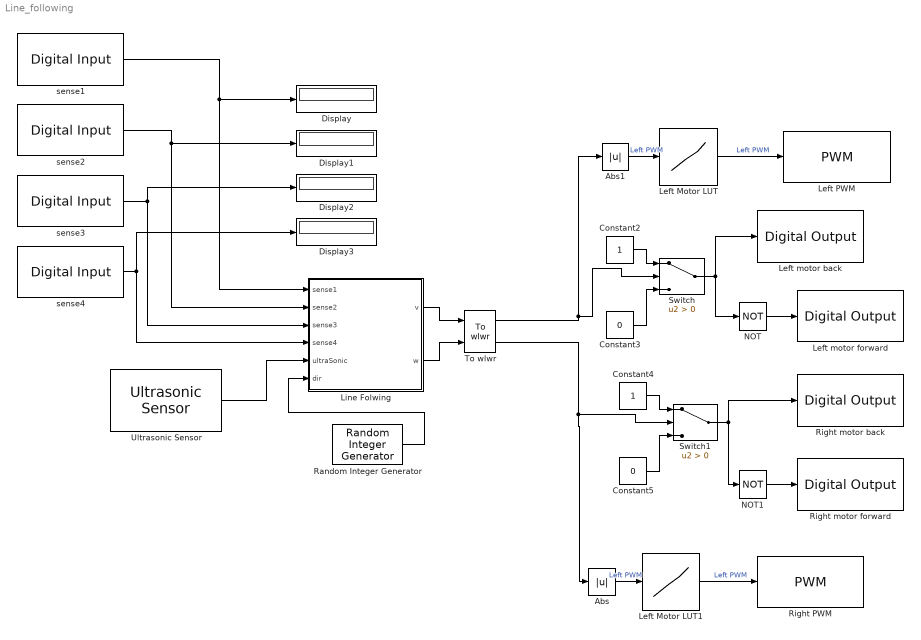
== stateflow chart Line_following/Line Folwing ==
  state Random
    entry:
    dir;
  state notEnd
    entry:
    v=-0.5;
  state End
    entry:
    v=0;
    w=0;
    i=1;
  state TurnAround
    entry:
    v=0;
    w=1;
  state checkEnd
    entry:
    v=0.5;
  state TurnLeft
    entry:
    v=0.5;
    w=1;
  state TurnRight
    entry:
    v=0.5;
    w=-1;
  state Drive
    entry:
    v=0.5;
    w=0;
    i;
    n;
    data1;
  state CorrectLeft
    entry:
    v=0.5;
    w=1
  state CorrectRight
    entry:
    v=0.5;
    w=-1
  state ObjectDetected
    entry:
    v=0.5;
  state CorrectRight1
    entry:
    w=-1;
  state CorrectLeft1
    entry:
    w=1;
  state TurnAround1
    entry:
    w=1;
  state EndOfLine
    entry:
    v=0;
  state update
    entry:
    data1=ultraSonic;
  state WeOUT
    entry:
    v=0;
    w=0;
  checkEnd -> TurnAround [order 3] : [after(0.5,sec) &&sense1 ==0 && sense2 == 0 && sense3 ==0 && sense4==0 && i==1]
  Random -> TurnLeft [order 2] : [dir==1]
  Random -> TurnRight [order 1] : [dir==0]
  notEnd -> Random : [after(0.5,sec)]
  checkEnd -> notEnd [order 1] : [after(0.5,sec) &&sense1 == 1 && sense2 == 1 && sense3 ==1 && sense4==1 ]
  End -> TurnAround : [after(3,sec)]
  checkEnd -> End [order 2] : [after(0.5,sec) &&sense1 ==0 && sense2 == 0 && sense3 ==0 && sense4==0 && i==0]
  TurnAround -> Drive : [after(2,sec) && sense2 == 0 && sense3 == 0]
  Drive -> checkEnd [order 2] : [sense1 == 0 && sense2 == 0 && sense3 == 0 && sense4==0]
  (default) -> Drive
  TurnRight -> Drive : [after(0.5,sec) && sense2 ==0 && sense3 ==0]
  Drive -> TurnLeft [order 6] : [after(0.5,sec) && sense2 == 0 && sense3 == 0 && sense1 == 0 ]
  TurnLeft -> Drive : [sense2==0 && sense3==0 && after(0.5,sec)]
  Drive -> TurnRight [order 3] : [after(0.5,sec) && sense2 == 0 && sense3 == 0 && sense4 == 0 && sense1==1]
  Drive -> CorrectLeft [order 4] : [sense2==0 && sense3 ==1 && sense1 == 1 &&sense4 ==1]
  Drive -> CorrectRight [order 1] : [sense2==1 && sense3 ==0 && sense1 == 1 &&sense4 ==1]
  CorrectLeft -> Drive : [sense2 ==0 && sense3 ==0]
  CorrectRight -> Drive : [sense2==0 && sense3 == 0]
  TurnAround1 -> Drive : [after(1,sec) && sense2 == 0 && sense3 == 0]
  Drive -> EndOfLine [order 7] : [sense1 == 1 && sense2 == 1 && sense3 == 1 && sense4==1]
  Drive -> ObjectDetected [order 5] : [ultraSonic ~= 0]
  ObjectDetected -> CorrectRight1 [order 2] : [sense2==1 && sense3 ==0]
  ObjectDetected -> CorrectLeft1 [order 3] : [sense2==0 && sense3 ==1]
  CorrectRight1 -> ObjectDetected : [sense2==0 && sense3 == 0]
  CorrectLeft1 -> ObjectDetected : [sense2 ==0 && sense3 ==0]
  ObjectDetected -> EndOfLine [order 1] : [sense1 == 0 && sense4 == 0]
  EndOfLine -> TurnAround1 [order 2] : [after(1,sec)]
  update -> EndOfLine
  EndOfLine -> update [order 1] : [ultraSonic<data1 && ultraSonic~=0 && i==0]
  EndOfLine -> WeOUT [order 3] : [i==1 && ultraSonic==data1]
  data: v output; w output; sense3 input; sense2 input; sense4 input; sense1 input; ultraSonic input; i local =0; dir input; n local =1; data1 local =100

/*
 * Line_following.c
 *
 * Academic License - for use in teaching, academic research, and meeting
 * course requirements at degree granting institutions only.  Not for
 * government, commercial, or other organizational use.
 *
 * Code generation for model "Line_following".
 *
 * Model version              : 5.20
 * Simulink Coder version : 9.9 (R2023a) 19-Nov-2022
 * C source code generated on : Thu Oct  5 15:04:30 2023
 *
 * Target selection: ert.tlc
 * Note: GRT includes extra infrastructure and instrumentation for prototyping
 * Embedded hardware selection: ARM Compatible->ARM Cortex
 * Code generation objectives: Unspecified
 * Validation result: Not run
 */

#include "Line_following.h"
#include "rtwtypes.h"
#include <string.h>
#include "Line_following_types.h"
#include <math.h>
#include "Line_following_private.h"

/* Named constants for Chart: '<Root>/Line Folwing' */
#define Line_followi_IN_NO_ACTIVE_CHILD ((uint8_T)0U)
#define Line_followin_IN_ObjectDetected ((uint8_T)8U)
#define Line_following_IN_CorrectLeft  ((uint8_T)1U)
#define Line_following_IN_CorrectLeft1 ((uint8_T)2U)
#define Line_following_IN_CorrectRight ((uint8_T)3U)
#define Line_following_IN_CorrectRight1 ((uint8_T)4U)
#define Line_following_IN_Drive        ((uint8_T)5U)
#define Line_following_IN_End          ((uint8_T)6U)
#define Line_following_IN_EndOfLine    ((uint8_T)7U)
#define Line_following_IN_Random       ((uint8_T)9U)
#define Line_following_IN_TurnAround   ((uint8_T)10U)
#define Line_following_IN_TurnAround1  ((uint8_T)11U)
#define Line_following_IN_TurnLeft     ((uint8_T)12U)
#define Line_following_IN_TurnRight    ((uint8_T)13U)
#define Line_following_IN_WeOUT        ((uint8_T)14U)
#define Line_following_IN_checkEnd     ((uint8_T)15U)
#define Line_following_IN_notEnd       ((uint8_T)16U)
#define Line_following_IN_update       ((uint8_T)17U)

/* Block signals (default storage) */
B_Line_following_T Line_following_B;

/* Block states (default storage) */
DW_Line_following_T Line_following_DW;

/* Real-time model */
static RT_MODEL_Line_following_T Line_following_M_;
RT_MODEL_Line_following_T *const Line_following_M = &Line_following_M_;

/* Forward declaration for local functions */
static void Line_following_Drive(void);
static void Line_following_checkEnd(void);
static real_T Line_following_rand(void);
static void rate_monotonic_scheduler(void);
uint32_T plook_u32d_binckan(real_T u, const real_T bp[], uint32_T maxIndex)
{
  uint32_T bpIndex;

  /* Prelookup - Index only
     Index Search method: 'binary'
     Interpolation method: 'Use nearest'
     Extrapolation method: 'Clip'
     Use previous index: 'off'
     Use last breakpoint for index at or above upper limit: 'on'
     Remove protection against out-of-range input in generated code: 'off'
   */
  if (u <= bp[0U]) {
    bpIndex = 0U;
  } else if (u < bp[maxIndex]) {
    bpIndex = binsearch_u32d(u, bp, maxIndex >> 1U, maxIndex);
    if ((bpIndex < maxIndex) && (bp[bpIndex + 1U] - u <= u - bp[bpIndex])) {
      bpIndex++;
    }
  } else {
    bpIndex = maxIndex;
  }

  return bpIndex;
}

uint32_T binsearch_u32d(real_T u, const real_T bp[], uint32_T startIndex,
  uint32_T maxIndex)
{
  uint32_T bpIdx;
  uint32_T bpIndex;
  uint32_T iRght;

  /* Binary Search */
  bpIdx = startIndex;
  bpIndex = 0U;
  iRght = maxIndex;
  while (iRght - bpIndex > 1U) {
    if (u < bp[bpIdx]) {
      iRght = bpIdx;
    } else {
      bpIndex = bpIdx;
    }

    bpIdx = (iRght + bpIndex) >> 1U;
  }

  return bpIndex;
}

/*
 * Set which subrates need to run this base step (base rate always runs).
 * This function must be called prior to calling the model step function
 * in order to remember which rates need to run this base step.  The
 * buffering of events allows for overlapping preemption.
 */
void Line_following_SetEventsForThisBaseStep(boolean_T *eventFlags)
{
  /* Task runs when its counter is zero, computed via rtmStepTask macro */
  eventFlags[1] = ((boolean_T)rtmStepTask(Line_following_M, 1));
  eventFlags[2] = ((boolean_T)rtmStepTask(Line_following_M, 2));
}

/*
 *         This function updates active task flag for each subrate
 *         and rate transition flags for tasks that exchange data.
 *         The function assumes rate-monotonic multitasking scheduler.
 *         The function must be called at model base rate so that
 *         the generated code self-manages all its subrates and rate
 *         transition flags.
 */
static void rate_monotonic_scheduler(void)
{
  /* To ensure a deterministic data transfer between two rates,
   * data is transferred at the priority of a fast task and the frequency
   * of the slow task.  The following flags indicate when the data transfer
   * happens.  That is, a rate interaction flag is set true when both rates
   * will run, and false otherwise.
   */

  /* tid 0 shares data with slower tid rates: 1, 2 */
  Line_following_M->Timing.RateInteraction.TID0_1 =
    (Line_following_M->Timing.TaskCounters.TID[1] == 0);
  Line_following_M->Timing.RateInteraction.TID0_2 =
    (Line_following_M->Timing.TaskCounters.TID[2] == 0);

  /* Compute which subrates run during the next base time step.  Subrates
   * are an integer multiple of the base rate counter.  Therefore, the subtask
   * counter is reset when it reaches its limit (zero means run).
   */
  (Line_following_M->Timing.TaskCounters.TID[1])++;
  if ((Line_following_M->Timing.TaskCounters.TID[1]) > 9) {/* Sample time: [0.1s, 0.0s] */
    Line_following_M->Timing.TaskCounters.TID[1] = 0;
  }

  (Line_following_M->Timing.TaskCounters.TID[2])++;
  if ((Line_following_M->Timing.TaskCounters.TID[2]) > 299) {/* Sample time: [3.0s, 0.0s] */
    Line_following_M->Timing.TaskCounters.TID[2] = 0;
  }
}

/* Function for Chart: '<Root>/Line Folwing' */
static void Line_following_Drive(void)
{
  boolean_T tmp;
  boolean_T tmp_0;
  boolean_T tmp_1;
  boolean_T tmp_2;
  Line_following_B.v = 0.12;
  Line_following_B.w = 0.0;
  tmp = !Line_following_B.TmpRTBAtLineFolwingInport1;
  if (Line_following_B.TmpRTBAtLineFolwingInport2 && tmp &&
      Line_following_B.TmpRTBAtLineFolwingInport4 &&
      Line_following_B.TmpRTBAtLineFolwingInport3) {
    Line_following_DW.is_c1_Line_following = Line_following_IN_CorrectRight;
    Line_following_B.w = -3.0;
  } else {
    tmp_0 = !Line_following_B.TmpRTBAtLineFolwingInport2;
    tmp_1 = !Line_following_B.TmpRTBAtLineFolwingInport3;
    tmp_2 = !Line_following_B.TmpRTBAtLineFolwingInport4;
    if (tmp_2 && tmp_0 && tmp && tmp_1) {
      Line_following_DW.is_c1_Line_following = Line_following_IN_checkEnd;
      Line_following_DW.temporalCounter_i1 = 0U;
    } else {
      tmp = ((Line_following_DW.temporalCounter_i1 >= 50U) && tmp_0 && tmp);
      if (tmp && tmp_1 && Line_following_B.TmpRTBAtLineFolwingInport4) {
        Line_following_DW.is_c1_Line_following = Line_following_IN_TurnRight;
        Line_following_DW.temporalCounter_i1 = 0U;
        Line_following_B.w = -3.0;
      } else if (tmp_0 && Line_following_B.TmpRTBAtLineFolwingInport1 &&
                 Line_following_B.TmpRTBAtLineFolwingInport4 &&
                 Line_following_B.TmpRTBAtLineFolwingInport3) {
        Line_following_DW.is_c1_Line_following = Line_following_IN_CorrectLeft;
        Line_following_B.w = 3.0;
      } else if (Line_following_B.UltrasonicSensor != 0.0) {
        Line_following_DW.is_c1_Line_following = Line_followin_IN_ObjectDetected;
      } else if (tmp && tmp_2) {
        Line_following_DW.is_c1_Line_following = Line_following_IN_TurnLeft;
        Line_following_DW.temporalCounter_i1 = 0U;
        Line_following_B.w = 3.0;
      } else if (Line_following_B.TmpRTBAtLineFolwingInport4 &&
                 Line_following_B.TmpRTBAtLineFolwingInport2 &&
                 Line_following_B.TmpRTBAtLineFolwingInport1 &&
                 Line_following_B.TmpRTBAtLineFolwingInport3) {
        Line_following_DW.is_c1_Line_following = Line_following_IN_EndOfLine;
        Line_following_DW.temporalCounter_i1 = 0U;
        Line_following_B.v = 0.0;
      }
    }
  }
}

/* Function for Chart: '<Root>/Line Folwing' */
static void Line_following_checkEnd(void)
{
  boolean_T tmp;
  Line_following_B.v = 0.12;
  if ((Line_following_DW.temporalCounter_i1 >= 50U) &&
      Line_following_B.TmpRTBAtLineFolwingInport4 &&
      Line_following_B.TmpRTBAtLineFolwingInport2 &&
      Line_following_B.TmpRTBAtLineFolwingInport1 &&
      Line_following_B.TmpRTBAtLineFolwingInport3) {
    Line_following_DW.is_c1_Line_following = Line_following_IN_notEnd;
    Line_following_DW.temporalCounter_i1 = 0U;
    Line_following_B.v = -0.12;
  } else {
    tmp = ((Line_following_DW.temporalCounter_i1 >= 50U) &&
           (!Line_following_B.TmpRTBAtLineFolwingInport4) &&
           (!Line_following_B.TmpRTBAtLineFolwingInport2) &&
           (!Line_following_B.TmpRTBAtLineFolwingInport1) &&
           (!Line_following_B.TmpRTBAtLineFolwingInport3));
    if (tmp && (Line_following_DW.i == 0.0)) {
      Line_following_DW.is_c1_Line_following = Line_following_IN_End;
      Line_following_DW.temporalCounter_i1 = 0U;
      Line_following_B.v = 0.0;
      Line_following_B.w = 0.0;
      Line_following_DW.i = 1.0;
    } else if (tmp && (Line_following_DW.i == 1.0)) {
      Line_following_DW.is_c1_Line_following = Line_following_IN_TurnAround;
      Line_following_DW.temporalCounter_i1 = 0U;
      Line_following_B.v = 0.0;
      Line_following_B.w = 3.0;
    }
  }
}

real_T rt_roundd_snf(real_T u)
{
  real_T y;
  if (fabs(u) < 4.503599627370496E+15) {
    if (u >= 0.5) {
      y = floor(u + 0.5);
    } else if (u > -0.5) {
      y = u * 0.0;
    } else {
      y = ceil(u - 0.5);
    }
  } else {
    y = u;
  }

  return y;
}

static real_T Line_following_rand(void)
{
  real_T r;
  int32_T b_kk;
  int32_T exitg1;
  int32_T k;
  uint32_T b_u[2];
  uint32_T mti;
  uint32_T y;
  boolean_T b_isvalid;
  boolean_T exitg2;
  if (Line_following_DW.method == 4U) {
    k = (int32_T)(Line_following_DW.state / 127773U);
    mti = (Line_following_DW.state - (uint32_T)k * 127773U) * 16807U;
    y = 2836U * (uint32_T)k;
    if (mti < y) {
      Line_following_DW.state = ~(y - mti) & 2147483647U;
    } else {
      Line_following_DW.state = mti - y;
    }

    r = (real_T)Line_following_DW.state * 4.6566128752457969E-10;
  } else if (Line_following_DW.method == 5U) {
    mti = 69069U * Line_following_DW.state_f[0] + 1234567U;
    y = Line_following_DW.state_f[1] << 13 ^ Line_following_DW.state_f[1];
    y ^= y >> 17;
    y ^= y << 5;
    Line_following_DW.state_f[0] = mti;
    Line_following_DW.state_f[1] = y;
    r = (real_T)(mti + y) * 2.328306436538696E-10;
  } else {
    /* ========================= COPYRIGHT NOTICE ============================ */
    /*  This is a uniform (0,1) pseudorandom number generator based on:        */
    /*                                                                         */
    /*  A C-program for MT19937, with initialization improved 2002/1/26.       */
    /*  Coded by Takuji Nishimura and Makoto Matsumoto.                        */
    /*                                                                         */
    /*  Copyright (C) 1997 - 2002, Makoto Matsumoto and Takuji Nishimura,      */
    /*  All rights reserved.                                                   */
    /*                                                                         */
    /*  Redistribution and use in source and binary forms, with or without     */
    /*  modification, are permitted provided that the following conditions     */
    /*  are met:                                                               */
    /*                                                                         */
    /*    1. Redistributions of source code must retain the above copyright    */
    /*       notice, this list of conditions and the following disclaimer.     */
    /*                                                                         */
    /*    2. Redistributions in binary form must reproduce the above copyright */
    /*       notice, this list of conditions and the following disclaimer      */
    /*       in the documentation and/or other materials provided with the     */
    /*       distribution.                                                     */
    /*                                                                         */
    /*    3. The names of its contributors may not be used to endorse or       */
    /*       promote products derived from this software without specific      */
    /*       prior written permission.                                         */
    /*                                                                         */
    /*  THIS SOFTWARE IS PROVIDED BY THE COPYRIGHT HOLDERS AND CONTRIBUTORS    */
    /*  "AS IS" AND ANY EXPRESS OR IMPLIED WARRANTIES, INCLUDING, BUT NOT      */
    /*  LIMITED TO, THE IMPLIED WARRANTIES OF MERCHANTABILITY AND FITNESS FOR  */
    /*  A PARTICULAR PURPOSE ARE DISCLAIMED.  IN NO EVENT SHALL THE COPYRIGHT  */
    /*  OWNER OR CONTRIBUTORS BE LIABLE FOR ANY DIRECT, INDIRECT, INCIDENTAL,  */
    /*  SPECIAL, EXEMPLARY, OR CONSEQUENTIAL DAMAGES (INCLUDING, BUT NOT       */
    /*  LIMITED TO, PROCUREMENT OF SUBSTITUTE GOODS OR SERVICES; LOSS OF USE,  */
    /*  DATA, OR PROFITS; OR BUSINESS INTERRUPTION) HOWEVER CAUSED AND ON ANY  */
    /*  THEORY OF LIABILITY, WHETHER IN CONTRACT, STRICT LIABILITY, OR TORT    */
    /*  (INCLUDING  NEGLIGENCE OR OTHERWISE) ARISING IN ANY WAY OUT OF THE USE */
    /*  OF THIS  SOFTWARE, EVEN IF ADVISED OF THE POSSIBILITY OF SUCH DAMAGE.  */
    /*                                                                         */
    /* =============================   END   ================================= */
    do {
      exitg1 = 0;
      for (k = 0; k < 2; k++) {
        mti = Line_following_DW.state_p[624] + 1U;
        if (Line_following_DW.state_p[624] + 1U >= 625U) {
          for (b_kk = 0; b_kk < 227; b_kk++) {
            y = (Line_following_DW.state_p[b_kk + 1] & 2147483647U) |
              (Line_following_DW.state_p[b_kk] & 2147483648U);
            if ((y & 1U) == 0U) {
              mti = y >> 1U;
            } else {
              mti = y >> 1U ^ 2567483615U;
            }

            Line_following_DW.state_p[b_kk] = Line_following_DW.state_p[b_kk +
              397] ^ mti;
          }

          for (b_kk = 0; b_kk < 396; b_kk++) {
            y = (Line_following_DW.state_p[b_kk + 227] & 2147483648U) |
              (Line_following_DW.state_p[b_kk + 228] & 2147483647U);
            if ((y & 1U) == 0U) {
              mti = y >> 1U;
            } else {
              mti = y >> 1U ^ 2567483615U;
            }

            Line_following_DW.state_p[b_kk + 227] =
              Line_following_DW.state_p[b_kk] ^ mti;
          }

          y = (Line_following_DW.state_p[623] & 2147483648U) |
            (Line_following_DW.state_p[0] & 2147483647U);
          if ((y & 1U) == 0U) {
            mti = y >> 1U;
          } else {
            mti = y >> 1U ^ 2567483615U;
          }

          Line_following_DW.state_p[623] = Line_following_DW.state_p[396] ^ mti;
          mti = 1U;
        }

        y = Line_following_DW.state_p[(int32_T)mti - 1];
        Line_following_DW.state_p[624] = mti;
        y ^= y >> 11U;
        y ^= y << 7U & 2636928640U;
        y ^= y << 15U & 4022730752U;
        b_u[k] = y >> 18U ^ y;
      }

      r = ((real_T)(b_u[0] >> 5U) * 6.7108864E+7 + (real_T)(b_u[1] >> 6U)) *
        1.1102230246251565E-16;
      if (r == 0.0) {
        if ((Line_following_DW.state_p[624] >= 1U) &&
            (Line_following_DW.state_p[624] < 625U)) {
          b_isvalid = true;
        } else {
          b_isvalid = false;
        }

        if (b_isvalid) {
          b_isvalid = false;
          k = 0;
          exitg2 = false;
          while ((!exitg2) && (k + 1 < 625)) {
            if (Line_following_DW.state_p[k] == 0U) {
              k++;
            } else {
              b_isvalid = true;
              exitg2 = true;
            }
          }
        }

        if (!b_isvalid) {
          mti = 5489U;
          Line_following_DW.state_p[0] = 5489U;
          for (k = 0; k < 623; k++) {
            mti = ((mti >> 30U ^ mti) * 1812433253U + (uint32_T)k) + 1U;
            Line_following_DW.state_p[k + 1] = mti;
          }

          Line_following_DW.state_p[624] = 624U;
        }
      } else {
        exitg1 = 1;
      }
    } while (exitg1 == 0);
  }

  return r;
}

/* Model step function for TID0 */
void Line_following_step0(void)        /* Sample time: [0.01s, 0.0s] */
{
  codertarget_arduinobase_inter_T *obj;
  real_T rtb_vtow_idx_0;
  real_T rtb_vtow_idx_1;
  real_T u0;
  uint32_T duration;
  uint8_T tmp;

  {                                    /* Sample time: [0.01s, 0.0s] */
    rate_monotonic_scheduler();
  }

  /* RateTransition generated from: '<Root>/Line Folwing' */
  if (Line_following_M->Timing.RateInteraction.TID0_1) {
    /* RateTransition generated from: '<Root>/Line Folwing' */
    Line_following_B.TmpRTBAtLineFolwingInport1 =
      Line_following_DW.TmpRTBAtLineFolwingInport1_Buff;

    /* RateTransition generated from: '<Root>/Line Folwing' */
    Line_following_B.TmpRTBAtLineFolwingInport2 =
      Line_following_DW.TmpRTBAtLineFolwingInport2_Buff;

    /* RateTransition generated from: '<Root>/Line Folwing' */
    Line_following_B.TmpRTBAtLineFolwingInport3 =
      Line_following_DW.TmpRTBAtLineFolwingInport3_Buff;

    /* RateTransition generated from: '<Root>/Line Folwing' */
    Line_following_B.TmpRTBAtLineFolwingInport4 =
      Line_following_DW.TmpRTBAtLineFolwingInport4_Buff;
  }

  /* End of RateTransition generated from: '<Root>/Line Folwing' */

  /* RateTransition generated from: '<Root>/Line Folwing' */
  if (Line_following_M->Timing.RateInteraction.TID0_2) {
    /* RateTransition generated from: '<Root>/Line Folwing' */
    Line_following_B.TmpRTBAtLineFolwingInport6 =
      Line_following_DW.TmpRTBAtLineFolwingInport6_Buff;
  }

  /* End of RateTransition generated from: '<Root>/Line Folwing' */

  /* MATLABSystem: '<Root>/Ultrasonic Sensor' */
  if (Line_following_DW.obj_bs.TunablePropsChanged) {
    Line_following_DW.obj_bs.TunablePropsChanged = false;
  }

  MW_UltrasonicRead(&duration, 1, 13, 12, 10);

  /* MATLABSystem: '<Root>/Ultrasonic Sensor' */
  Line_following_B.UltrasonicSensor = (real_T)duration * 0.000343 / 2.0;

  /* Chart: '<Root>/Line Folwing' */
  if (Line_following_DW.temporalCounter_i1 < 511U) {
    Line_following_DW.temporalCounter_i1++;
  }

  if (Line_following_DW.is_active_c1_Line_following == 0U) {
    Line_following_DW.is_active_c1_Line_following = 1U;
    Line_following_DW.is_c1_Line_following = Line_following_IN_Drive;
    Line_following_DW.temporalCounter_i1 = 0U;
    Line_following_B.v = 0.12;
    Line_following_B.w = 0.0;
  } else {
    switch (Line_following_DW.is_c1_Line_following) {
     case Line_following_IN_CorrectLeft:
      Line_following_B.v = 0.12;
      Line_following_B.w = 3.0;
      if ((!Line_following_B.TmpRTBAtLineFolwingInport2) &&
          (!Line_following_B.TmpRTBAtLineFolwingInport1)) {
        Line_following_DW.is_c1_Line_following = Line_following_IN_Drive;
        Line_following_DW.temporalCounter_i1 = 0U;
        Line_following_B.w = 0.0;
      }
      break;

     case Line_following_IN_CorrectLeft1:
      Line_following_B.w = 3.0;
      if ((!Line_following_B.TmpRTBAtLineFolwingInport2) &&
          (!Line_following_B.TmpRTBAtLineFolwingInport1)) {
        Line_following_DW.is_c1_Line_following = Line_followin_IN_ObjectDetected;
        Line_following_B.v = 0.12;
      }
      break;

     case Line_following_IN_CorrectRight:
      Line_following_B.v = 0.12;
      Line_following_B.w = -3.0;
      if ((!Line_following_B.TmpRTBAtLineFolwingInport2) &&
          (!Line_following_B.TmpRTBAtLineFolwingInport1)) {
        Line_following_DW.is_c1_Line_following = Line_following_IN_Drive;
        Line_following_DW.temporalCounter_i1 = 0U;
        Line_following_B.w = 0.0;
      }
      break;

     case Line_following_IN_CorrectRight1:
      Line_following_B.w = -3.0;
      if ((!Line_following_B.TmpRTBAtLineFolwingInport2) &&
          (!Line_following_B.TmpRTBAtLineFolwingInport1)) {
        Line_following_DW.is_c1_Line_following = Line_followin_IN_ObjectDetected;
        Line_following_B.v = 0.12;
      }
      break;

     case Line_following_IN_Drive:
      Line_following_Drive();
      break;

     case Line_following_IN_End:
      Line_following_B.v = 0.0;
      Line_following_B.w = 0.0;
      if (Line_following_DW.temporalCounter_i1 >= 300U) {
        Line_following_DW.is_c1_Line_following = Line_following_IN_TurnAround;
        Line_following_DW.temporalCounter_i1 = 0U;
        Line_following_B.w = 3.0;
      }
      break;

     case Line_following_IN_EndOfLine:
      Line_following_B.v = 0.0;
      if ((Line_following_B.UltrasonicSensor < Line_following_DW.data1) &&
          (Line_following_B.UltrasonicSensor != 0.0) && (Line_following_DW.i ==
           0.0)) {
        Line_following_DW.is_c1_Line_following = Line_following_IN_update;
        Line_following_DW.data1 = Line_following_B.UltrasonicSensor;
      } else if (Line_following_DW.temporalCounter_i1 >= 100U) {
        Line_following_DW.is_c1_Line_following = Line_following_IN_TurnAround1;
        Line_following_DW.temporalCounter_i1 = 0U;
        Line_following_B.w = 3.0;
      } else if ((Line_following_DW.i == 1.0) &&
                 (Line_following_B.UltrasonicSensor == Line_following_DW.data1))
      {
        Line_following_DW.is_c1_Line_following = Line_following_IN_WeOUT;
        Line_following_B.w = 0.0;
      }
      break;

     case Line_followin_IN_ObjectDetected:
      Line_following_B.v = 0.12;
      if ((!Line_following_B.TmpRTBAtLineFolwingInport4) &&
          (!Line_following_B.TmpRTBAtLineFolwingInport3)) {
        Line_following_DW.is_c1_Line_following = Line_following_IN_EndOfLine;
        Line_following_DW.temporalCounter_i1 = 0U;
        Line_following_B.v = 0.0;
      } else if (Line_following_B.TmpRTBAtLineFolwingInport2 &&
                 (!Line_following_B.TmpRTBAtLineFolwingInport1)) {
        Line_following_DW.is_c1_Line_following = Line_following_IN_CorrectRight1;
        Line_following_B.w = -3.0;
      } else if ((!Line_following_B.TmpRTBAtLineFolwingInport2) &&
                 Line_following_B.TmpRTBAtLineFolwingInport1) {
        Line_following_DW.is_c1_Line_following = Line_following_IN_CorrectLeft1;
        Line_following_B.w = 3.0;
      }
      break;

     case Line_following_IN_Random:
      if (!Line_following_B.TmpRTBAtLineFolwingInport6) {
        Line_following_DW.is_c1_Line_following = Line_following_IN_TurnRight;
        Line_following_DW.temporalCounter_i1 = 0U;
        Line_following_B.v = 0.12;
        Line_following_B.w = -3.0;
      } else {
        Line_following_DW.is_c1_Line_following = Line_following_IN_TurnLeft;
        Line_following_DW.temporalCounter_i1 = 0U;
        Line_following_B.v = 0.12;
        Line_following_B.w = 3.0;
      }
      break;

     case Line_following_IN_TurnAround:
      Line_following_B.v = 0.0;
      Line_following_B.w = 3.0;
      if ((Line_following_DW.temporalCounter_i1 >= 200U) &&
          (!Line_following_B.TmpRTBAtLineFolwingInport2) &&
          (!Line_following_B.TmpRTBAtLineFolwingInport1)) {
        Line_following_DW.is_c1_Line_following = Line_following_IN_Drive;
        Line_following_DW.temporalCounter_i1 = 0U;
        Line_following_B.v = 0.12;
        Line_following_B.w = 0.0;
      }
      break;

     case Line_following_IN_TurnAround1:
      Line_following_B.w = 3.0;
      if ((Line_following_DW.temporalCounter_i1 >= 100U) &&
          (!Line_following_B.TmpRTBAtLineFolwingInport2) &&
          (!Line_following_B.TmpRTBAtLineFolwingInport1)) {
        Line_following_DW.is_c1_Line_following = Line_following_IN_Drive;
        Line_following_DW.temporalCounter_i1 = 0U;
        Line_following_B.v = 0.12;
        Line_following_B.w = 0.0;
      }
      break;

     case Line_following_IN_TurnLeft:
      Line_following_B.v = 0.12;
      Line_following_B.w = 3.0;
      if ((!Line_following_B.TmpRTBAtLineFolwingInport2) &&
          (!Line_following_B.TmpRTBAtLineFolwingInport1) &&
          (Line_following_DW.temporalCounter_i1 >= 50U)) {
        Line_following_DW.is_c1_Line_following = Line_following_IN_Drive;
        Line_following_DW.temporalCounter_i1 = 0U;
        Line_following_B.w = 0.0;
      }
      break;

     case Line_following_IN_TurnRight:
      Line_following_B.v = 0.12;
      Line_following_B.w = -3.0;
      if ((Line_following_DW.temporalCounter_i1 >= 50U) &&
          (!Line_following_B.TmpRTBAtLineFolwingInport2) &&
          (!Line_following_B.TmpRTBAtLineFolwingInport1)) {
        Line_following_DW.is_c1_Line_following = Line_following_IN_Drive;
        Line_following_DW.temporalCounter_i1 = 0U;
        Line_following_B.w = 0.0;
      }
      break;

     case Line_following_IN_WeOUT:
      Line_following_B.v = 0.0;
      Line_following_B.w = 0.0;
      break;

     case Line_following_IN_checkEnd:
      Line_following_checkEnd();
      break;

     case Line_following_IN_notEnd:
      Line_following_B.v = -0.12;
      if (Line_following_DW.temporalCounter_i1 >= 50U) {
        Line_following_DW.is_c1_Line_following = Line_following_IN_Random;
      }
      break;

     default:
      /* case IN_update: */
      Line_following_DW.is_c1_Line_following = Line_following_IN_EndOfLine;
      Line_following_DW.temporalCounter_i1 = 0U;
      Line_following_B.v = 0.0;
      break;
    }
  }

  /* End of Chart: '<Root>/Line Folwing' */

  /* Gain: '<S2>/vtow' incorporates:
   *  Gain: '<S2>/change parameters'
   *  SignalConversion generated from: '<S2>/change parameters'
   */
  u0 = 1.0 / Line_following_P.Towlwr_wheelR;
  rtb_vtow_idx_0 = (Line_following_P.changeparameters_Gain[0] *
                    Line_following_B.v + Line_following_P.changeparameters_Gain
                    [2] * Line_following_B.w) * u0;
  rtb_vtow_idx_1 = (Line_following_P.changeparameters_Gain[1] *
                    Line_following_B.v + Line_following_P.changeparameters_Gain
                    [3] * Line_following_B.w) * u0;

  /* MATLABSystem: '<Root>/Left PWM' */
  obj = &Line_following_DW.obj_f;
  obj->PWMDriverObj.MW_PWM_HANDLE = MW_PWM_GetHandle(16U);

  /* Lookup_n-D: '<Root>/Left Motor LUT' incorporates:
   *  Abs: '<Root>/Abs1'
   */
  u0 = Line_following_P.InputPWM[plook_u32d_binckan(fabs(rtb_vtow_idx_0),
    Line_following_P.WheelSpeed, 172U)];

  /* MATLABSystem: '<Root>/Left PWM' */
  if (!(u0 <= 255.0)) {
    u0 = 255.0;
  }

  if (!(u0 >= 0.0)) {
    u0 = 0.0;
  }

  MW_PWM_SetDutyCycle(Line_following_DW.obj_f.PWMDriverObj.MW_PWM_HANDLE, u0);

  /* Switch: '<Root>/Switch' incorporates:
   *  Constant: '<Root>/Constant2'
   *  Constant: '<Root>/Constant3'
   */
  if (rtb_vtow_idx_0 > Line_following_P.Switch_Threshold) {
    rtb_vtow_idx_0 = Line_following_P.Constant2_Value;
  } else {
    rtb_vtow_idx_0 = Line_following_P.Constant3_Value;
  }

  /* End of Switch: '<Root>/Switch' */

  /* MATLABSystem: '<Root>/Left motor back' */
  u0 = rt_roundd_snf(rtb_vtow_idx_0);
  if (u0 < 256.0) {
    if (u0 >= 0.0) {
      tmp = (uint8_T)u0;
    } else {
      tmp = 0U;
    }
  } else {
    tmp = MAX_uint8_T;
  }

  writeDigitalPin(5, tmp);

  /* End of MATLABSystem: '<Root>/Left motor back' */

  /* MATLABSystem: '<Root>/Left motor forward' incorporates:
   *  Logic: '<Root>/NOT'
   */
  writeDigitalPin(4, (uint8_T)!(rtb_vtow_idx_0 != 0.0));

  /* MATLABSystem: '<Root>/Right PWM' */
  obj = &Line_following_DW.obj_p;
  obj->PWMDriverObj.MW_PWM_HANDLE = MW_PWM_GetHandle(17U);

  /* Lookup_n-D: '<Root>/Left Motor LUT1' incorporates:
   *  Abs: '<Root>/Abs'
   */
  u0 = Line_following_P.InputPWM[plook_u32d_binckan(fabs(rtb_vtow_idx_1),
    Line_following_P.WheelSpeed, 172U)];

  /* MATLABSystem: '<Root>/Right PWM' */
  if (!(u0 <= 255.0)) {
    u0 = 255.0;
  }

  if (!(u0 >= 0.0)) {
    u0 = 0.0;
  }

  MW_PWM_SetDutyCycle(Line_following_DW.obj_p.PWMDriverObj.MW_PWM_HANDLE, u0);

  /* Switch: '<Root>/Switch1' incorporates:
   *  Constant: '<Root>/Constant4'
   *  Constant: '<Root>/Constant5'
   */
  if (rtb_vtow_idx_1 > Line_following_P.Switch1_Threshold) {
    rtb_vtow_idx_1 = Line_following_P.Constant4_Value;
  } else {
    rtb_vtow_idx_1 = Line_following_P.Constant5_Value;
  }

  /* End of Switch: '<Root>/Switch1' */

  /* MATLABSystem: '<Root>/Right motor back' */
  u0 = rt_roundd_snf(rtb_vtow_idx_1);
  if (u0 < 256.0) {
    if (u0 >= 0.0) {
      tmp = (uint8_T)u0;
    } else {
      tmp = 0U;
    }
  } else {
    tmp = MAX_uint8_T;
  }

  writeDigitalPin(7, tmp);

  /* End of MATLABSystem: '<Root>/Right motor back' */

  /* MATLABSystem: '<Root>/Right motor forward' incorporates:
   *  Logic: '<Root>/NOT1'
   */
  writeDigitalPin(6, (uint8_T)!(rtb_vtow_idx_1 != 0.0));
}

/* Model step function for TID1 */
void Line_following_step1(void)        /* Sample time: [0.1s, 0.0s] */
{
  boolean_T rtb_sense3;

  /* MATLABSystem: '<Root>/sense3' */
  if (Line_following_DW.obj_h.SampleTime != Line_following_P.sense3_SampleTime)
  {
    Line_following_DW.obj_h.SampleTime = Line_following_P.sense3_SampleTime;
  }

  rtb_sense3 = readDigitalPin(9);

  /* End of MATLABSystem: '<Root>/sense3' */

  /* RateTransition generated from: '<Root>/Line Folwing' */
  Line_following_DW.TmpRTBAtLineFolwingInport1_Buff = rtb_sense3;

  /* MATLABSystem: '<Root>/sense2' */
  if (Line_following_DW.obj_b.SampleTime != Line_following_P.sense2_SampleTime)
  {
    Line_following_DW.obj_b.SampleTime = Line_following_P.sense2_SampleTime;
  }

  rtb_sense3 = readDigitalPin(10);

  /* End of MATLABSystem: '<Root>/sense2' */

  /* RateTransition generated from: '<Root>/Line Folwing' */
  Line_following_DW.TmpRTBAtLineFolwingInport2_Buff = rtb_sense3;

  /* MATLABSystem: '<Root>/sense4' */
  if (Line_following_DW.obj.SampleTime != Line_following_P.sense4_SampleTime) {
    Line_following_DW.obj.SampleTime = Line_following_P.sense4_SampleTime;
  }

  rtb_sense3 = readDigitalPin(8);

  /* End of MATLABSystem: '<Root>/sense4' */

  /* RateTransition generated from: '<Root>/Line Folwing' */
  Line_following_DW.TmpRTBAtLineFolwingInport3_Buff = rtb_sense3;

  /* MATLABSystem: '<Root>/sense1' */
  if (Line_following_DW.obj_m.SampleTime != Line_following_P.sense1_SampleTime)
  {
    Line_following_DW.obj_m.SampleTime = Line_following_P.sense1_SampleTime;
  }

  rtb_sense3 = readDigitalPin(11);

  /* End of MATLABSystem: '<Root>/sense1' */

  /* RateTransition generated from: '<Root>/Line Folwing' */
  Line_following_DW.TmpRTBAtLineFolwingInport4_Buff = rtb_sense3;
}

/* Model step function for TID2 */
void Line_following_step2(void)        /* Sample time: [3.0s, 0.0s] */
{
  real_T b;
  boolean_T rtb_RandomIntegerGenerator;

  /* MATLABSystem: '<Root>/Random Integer Generator' */
  b = Line_following_rand();
  rtb_RandomIntegerGenerator = (floor(b * 2.0) != 0.0);

  /* RateTransition generated from: '<Root>/Line Folwing' */
  Line_following_DW.TmpRTBAtLineFolwingInport6_Buff = rtb_RandomIntegerGenerator;
}
